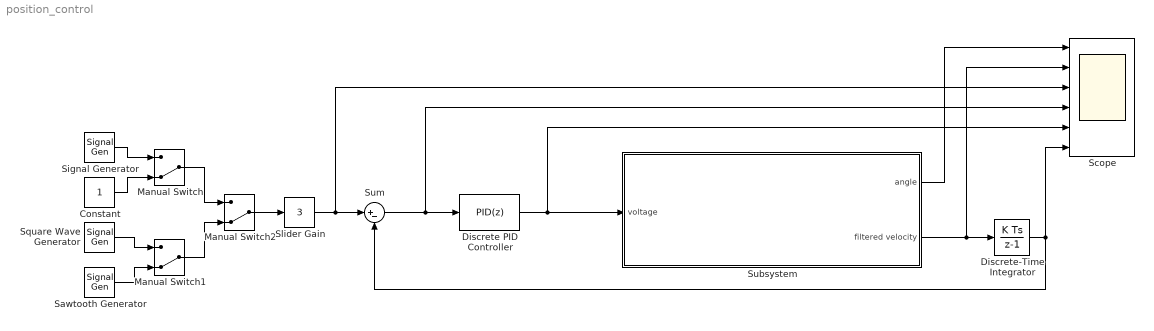
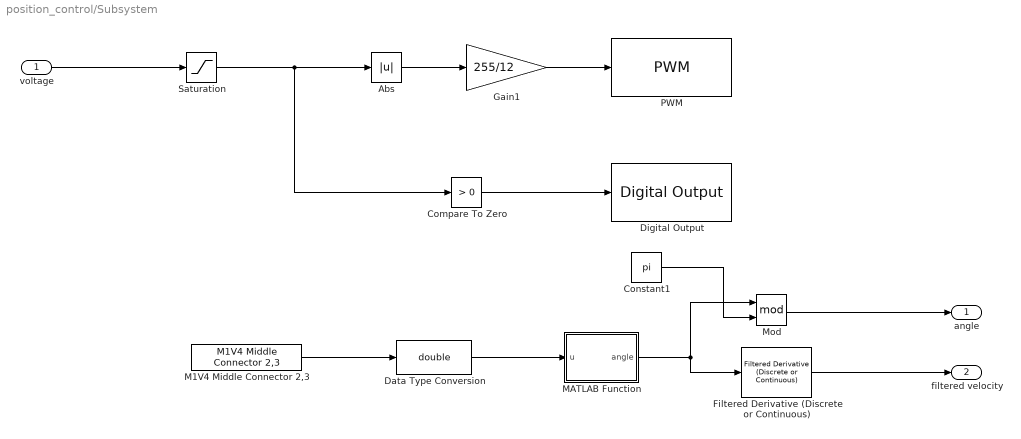
== matlab function position_control/Subsystem/MATLAB Function ==
function angle = count2angle(u)

N = 500; Q = 4; G = 6.3;
factor = 2 * pi / (N*Q*G);
angle = u * factor;

/*
 * Academic License - for use in teaching, academic research, and meeting
 * course requirements at degree granting institutions only.  Not for
 * government, commercial, or other organizational use.
 *
 * File: position_control.c
 *
 * Code generated for Simulink model 'position_control'.
 *
 * Model version                  : 1.5
 * Simulink Coder version         : 9.9 (R2023a) 19-Nov-2022
 * C/C++ source code generated on : Fri Jul 17 13:14:09 2026
 *
 * Target selection: ert.tlc
 * Embedded hardware selection: Atmel->AVR
 * Code generation objectives: Unspecified
 * Validation result: Not run
 */

#include "position_control.h"
#include "rtwtypes.h"
#include "rt_nonfinite.h"
#include "position_control_private.h"
#include <math.h>
#include "position_control_types.h"
#include <float.h>

/* Block signals (default storage) */
B_position_control_T position_control_B;

/* Block states (default storage) */
DW_position_control_T position_control_DW;

/* Real-time model */
static RT_MODEL_position_control_T position_control_M_;
RT_MODEL_position_control_T *const position_control_M = &position_control_M_;
real_T rt_modd_snf(real_T u0, real_T u1)
{
  real_T q;
  real_T y;
  boolean_T yEq;
  y = u0;
  if (u1 == 0.0) {
    if (u0 == 0.0) {
      y = u1;
    }
  } else if (rtIsNaN(u0) || rtIsNaN(u1) || rtIsInf(u0)) {
    y = (rtNaN);
  } else if (u0 == 0.0) {
    y = 0.0 / u1;
  } else if (rtIsInf(u1)) {
    if ((u1 < 0.0) != (u0 < 0.0)) {
      y = u1;
    }
  } else {
    y = fmod(u0, u1);
    yEq = (y == 0.0);
    if ((!yEq) && (u1 > floor(u1))) {
      q = fabs(u0 / u1);
      yEq = !(fabs(q - floor(q + 0.5)) > DBL_EPSILON * q);
    }

    if (yEq) {
      y = u1 * 0.0;
    } else if ((u0 < 0.0) != (u1 < 0.0)) {
      y += u1;
    }
  }

  return y;
}

/* Model step function */
void position_control_step(void)
{
  /* local block i/o variables */
  real_T rtb_FilterCoefficient;
  real_T rtb_Switch;
  codertarget_arduinobase_inter_T *obj;
  real_T angle;
  real_T rtb_Integrator_c;
  real_T temp;
  int32_T rtb_M1V4MiddleConnector23_0;
  int8_T tmp;
  int8_T tmp_0;

  /* Gain: '<S57>/Minimum sampling to time constant ratio' */
  rtb_Integrator_c = position_control_P.FilteredDerivativeDiscreteorC_m *
    position_control_B.Probe[0];

  /* MinMax: '<S57>/MinMax' incorporates:
   *  Constant: '<S57>/Time constant'
   */
  if ((!(rtb_Integrator_c >= position_control_P.FilteredDerivativeDiscreteorC_a))
      && (!rtIsNaN(position_control_P.FilteredDerivativeDiscreteorC_a))) {
    rtb_Integrator_c = position_control_P.FilteredDerivativeDiscreteorC_a;
  }

  /* End of MinMax: '<S57>/MinMax' */

  /* MATLABSystem: '<S3>/M1V4 Middle Connector 2,3' */
  /*         %% Define output properties */
  /*  Call: int enc_output(int enc) */
  rtb_M1V4MiddleConnector23_0 = enc_output(0.0);

  /* MATLAB Function: '<S3>/MATLAB Function' incorporates:
   *  DataTypeConversion: '<S3>/Data Type Conversion'
   *  MATLABSystem: '<S3>/M1V4 Middle Connector 2,3'
   */
  angle = (real_T)rtb_M1V4MiddleConnector23_0 * 0.00049866550056980839;

  /* DiscreteIntegrator: '<S61>/Integrator' incorporates:
   *  Constant: '<S55>/Constant'
   */
  if (position_control_DW.Integrator_IC_LOADING != 0) {
    position_control_DW.Integrator_DSTATE = angle;
    if (position_control_DW.Integrator_DSTATE >=
        position_control_P.Integrator_UpperSat) {
      position_control_DW.Integrator_DSTATE =
        position_control_P.Integrator_UpperSat;
    } else if (position_control_DW.Integrator_DSTATE <=
               position_control_P.Integrator_LowerSat) {
      position_control_DW.Integrator_DSTATE =
        position_control_P.Integrator_LowerSat;
    }
  }

  if ((position_control_P.Constant_Value_h != 0.0) ||
      (position_control_DW.Integrator_PrevResetState != 0)) {
    position_control_DW.Integrator_DSTATE = angle;
    if (position_control_DW.Integrator_DSTATE >=
        position_control_P.Integrator_UpperSat) {
      position_control_DW.Integrator_DSTATE =
        position_control_P.Integrator_UpperSat;
    } else if (position_control_DW.Integrator_DSTATE <=
               position_control_P.Integrator_LowerSat) {
      position_control_DW.Integrator_DSTATE =
        position_control_P.Integrator_LowerSat;
    }
  }

  if (position_control_DW.Integrator_DSTATE >=
      position_control_P.Integrator_UpperSat) {
    position_control_DW.Integrator_DSTATE =
      position_control_P.Integrator_UpperSat;
  } else if (position_control_DW.Integrator_DSTATE <=
             position_control_P.Integrator_LowerSat) {
    position_control_DW.Integrator_DSTATE =
      position_control_P.Integrator_LowerSat;
  }

  /* Saturate: '<S61>/Saturation' incorporates:
   *  DiscreteIntegrator: '<S61>/Integrator'
   */
  if (position_control_DW.Integrator_DSTATE >
      position_control_P.Saturation_UpperSat) {
    temp = position_control_P.Saturation_UpperSat;
  } else if (position_control_DW.Integrator_DSTATE <
             position_control_P.Saturation_LowerSat) {
    temp = position_control_P.Saturation_LowerSat;
  } else {
    temp = position_control_DW.Integrator_DSTATE;
  }

  /* Product: '<S55>/1//T' incorporates:
   *  Fcn: '<S57>/Avoid Divide by Zero'
   *  Saturate: '<S61>/Saturation'
   *  Sum: '<S55>/Sum1'
   */
  position_control_B.uT = 1.0 / ((real_T)(rtb_Integrator_c == 0.0) *
    2.2204460492503131e-16 + rtb_Integrator_c) * (angle - temp);

  /* Gain: '<S55>/Gain' */
  position_control_B.AB = position_control_P.FilteredDerivativeDiscreteorC_i *
    position_control_B.uT;

  /* Saturate: '<S55>/[A,B]' */
  if (position_control_B.AB > position_control_P.FilteredDerivativeDiscreteorC_p)
  {
    /* Gain: '<S55>/Gain' incorporates:
     *  Saturate: '<S55>/[A,B]'
     */
    position_control_B.AB = position_control_P.FilteredDerivativeDiscreteorC_p;
  } else if (position_control_B.AB <
             position_control_P.FilteredDerivativeDiscreteorCon) {
    /* Gain: '<S55>/Gain' incorporates:
     *  Saturate: '<S55>/[A,B]'
     */
    position_control_B.AB = position_control_P.FilteredDerivativeDiscreteorCon;
  }

  /* End of Saturate: '<S55>/[A,B]' */
  /* Math: '<S3>/Mod' incorporates:
   *  Constant: '<S3>/Constant1'
   */
  position_control_B.Mod = rt_modd_snf(angle,
    position_control_P.Constant1_Value_g);

  /* SignalGenerator: '<Root>/Square Wave Generator' incorporates:
   *  SignalGenerator: '<Root>/Signal Generator'
   */
  angle = position_control_M->Timing.t[0];
  rtb_Integrator_c = position_control_P.SquareWaveGenerator_Frequency * angle;

  /* SignalGenerator: '<Root>/Sawtooth Generator' incorporates:
   *  SignalGenerator: '<Root>/Square Wave Generator'
   */
  temp = position_control_P.SawtoothGenerator_Frequency * angle;

  /* ManualSwitch: '<Root>/Manual Switch2' incorporates:
   *  ManualSwitch: '<Root>/Manual Switch1'
   *  SignalGenerator: '<Root>/Sawtooth Generator'
   */
  if (position_control_P.ManualSwitch2_CurrentSetting == 1) {
    /* ManualSwitch: '<Root>/Manual Switch' incorporates:
     *  Constant: '<Root>/Constant'
     *  SignalGenerator: '<Root>/Signal Generator'
     */
    if (position_control_P.ManualSwitch_CurrentSetting == 1) {
      angle = sin(position_control_P.SignalGenerator_Frequency * angle) *
        position_control_P.SignalGenerator_Amplitude;
    } else {
      angle = position_control_P.Constant_Value_c;
    }

    /* End of ManualSwitch: '<Root>/Manual Switch' */
  } else if (position_control_P.ManualSwitch1_CurrentSetting == 1) {
    /* SignalGenerator: '<Root>/Square Wave Generator' */
    if (rtb_Integrator_c - floor(rtb_Integrator_c) >= 0.5) {
      /* ManualSwitch: '<Root>/Manual Switch1' incorporates:
       *  SignalGenerator: '<Root>/Square Wave Generator'
       */
      angle = position_control_P.SquareWaveGenerator_Amplitude;
    } else {
      /* ManualSwitch: '<Root>/Manual Switch1' incorporates:
       *  SignalGenerator: '<Root>/Square Wave Generator'
       */
      angle = -position_control_P.SquareWaveGenerator_Amplitude;
    }
  } else {
    angle = (1.0 - (temp - floor(temp)) * 2.0) *
      position_control_P.SawtoothGenerator_Amplitude;
  }

  /* End of ManualSwitch: '<Root>/Manual Switch2' */

  /* Gain: '<S2>/Slider Gain' */
  position_control_B.SliderGain = position_control_P.SliderGain_gain * angle;

  /* DiscreteIntegrator: '<Root>/Discrete-Time Integrator' */
  position_control_B.DiscreteTimeIntegrator =
    position_control_DW.DiscreteTimeIntegrator_DSTATE;

  /* Sum: '<Root>/Sum' */
  position_control_B.Sum = position_control_B.SliderGain -
    position_control_B.DiscreteTimeIntegrator;

  /* Gain: '<S40>/Filter Coefficient' incorporates:
   *  DiscreteIntegrator: '<S32>/Filter'
   *  Gain: '<S31>/Derivative Gain'
   *  Sum: '<S32>/SumD'
   */
  rtb_FilterCoefficient = (position_control_P.DiscretePIDController_D *
    position_control_B.Sum - position_control_DW.Filter_DSTATE) *
    position_control_P.DiscretePIDController_N;

  /* Sum: '<S46>/Sum' incorporates:
   *  DiscreteIntegrator: '<S37>/Integrator'
   *  Gain: '<S42>/Proportional Gain'
   */
  angle = (position_control_P.DiscretePIDController_P * position_control_B.Sum +
           position_control_DW.Integrator_DSTATE_c) + rtb_FilterCoefficient;

  /* Saturate: '<S44>/Saturation' */
  if (angle > position_control_P.DiscretePIDController_UpperSatu) {
    /* Saturate: '<S44>/Saturation' */
    position_control_B.Saturation_n =
      position_control_P.DiscretePIDController_UpperSatu;
  } else if (angle < position_control_P.DiscretePIDController_LowerSatu) {
    /* Saturate: '<S44>/Saturation' */
    position_control_B.Saturation_n =
      position_control_P.DiscretePIDController_LowerSatu;
  } else {
    /* Saturate: '<S44>/Saturation' */
    position_control_B.Saturation_n = angle;
  }

  /* End of Saturate: '<S44>/Saturation' */
  /* Saturate: '<S3>/Saturation' */
  if (position_control_B.Saturation_n > position_control_P.Saturation_UpperSat_j)
  {
    /* Gain: '<S34>/Integral Gain' */
    rtb_Switch = position_control_P.Saturation_UpperSat_j;
  } else if (position_control_B.Saturation_n <
             position_control_P.Saturation_LowerSat_h) {
    /* Gain: '<S34>/Integral Gain' */
    rtb_Switch = position_control_P.Saturation_LowerSat_h;
  } else {
    /* Gain: '<S34>/Integral Gain' */
    rtb_Switch = position_control_B.Saturation_n;
  }

  /* End of Saturate: '<S3>/Saturation' */

  /* MATLABSystem: '<S3>/Digital Output' incorporates:
   *  Constant: '<S54>/Constant'
   *  RelationalOperator: '<S54>/Compare'
   */
  writeDigitalPin(8, (uint8_T)(rtb_Switch > position_control_P.Constant_Value));

  /* MATLABSystem: '<S3>/PWM' */
  obj = &position_control_DW.obj_l;
  obj->PWMDriverObj.MW_PWM_HANDLE = MW_PWM_GetHandle(9UL);

  /* Gain: '<S3>/Gain1' incorporates:
   *  Abs: '<S3>/Abs'
   */
  rtb_Integrator_c = position_control_P.Gain1_Gain * fabs(rtb_Switch);

  /* MATLABSystem: '<S3>/PWM' */
  if (!(rtb_Integrator_c <= 255.0)) {
    rtb_Integrator_c = 255.0;
  }

  if (!(rtb_Integrator_c >= 0.0)) {
    rtb_Integrator_c = 0.0;
  }

  MW_PWM_SetDutyCycle(position_control_DW.obj_l.PWMDriverObj.MW_PWM_HANDLE,
                      rtb_Integrator_c);

  /* DeadZone: '<S30>/DeadZone' */
  if (angle > position_control_P.DiscretePIDController_UpperSatu) {
    angle -= position_control_P.DiscretePIDController_UpperSatu;
  } else if (angle >= position_control_P.DiscretePIDController_LowerSatu) {
    angle = 0.0;
  } else {
    angle -= position_control_P.DiscretePIDController_LowerSatu;
  }

  /* End of DeadZone: '<S30>/DeadZone' */

  /* Gain: '<S34>/Integral Gain' */
  rtb_Switch = position_control_P.DiscretePIDController_I *
    position_control_B.Sum;

  /* Switch: '<S28>/Switch1' incorporates:
   *  Constant: '<S28>/Clamping_zero'
   *  Constant: '<S28>/Constant'
   *  Constant: '<S28>/Constant2'
   *  RelationalOperator: '<S28>/fix for DT propagation issue'
   */
  if (angle > position_control_P.Clamping_zero_Value) {
    tmp = position_control_P.Constant_Value_l;
  } else {
    tmp = position_control_P.Constant2_Value;
  }

  /* Switch: '<S28>/Switch2' incorporates:
   *  Constant: '<S28>/Clamping_zero'
   *  Constant: '<S28>/Constant3'
   *  Constant: '<S28>/Constant4'
   *  RelationalOperator: '<S28>/fix for DT propagation issue1'
   */
  if (rtb_Switch > position_control_P.Clamping_zero_Value) {
    tmp_0 = position_control_P.Constant3_Value;
  } else {
    tmp_0 = position_control_P.Constant4_Value;
  }

  /* Switch: '<S28>/Switch' incorporates:
   *  Constant: '<S28>/Clamping_zero'
   *  Logic: '<S28>/AND3'
   *  RelationalOperator: '<S28>/Equal1'
   *  RelationalOperator: '<S28>/Relational Operator'
   *  Switch: '<S28>/Switch1'
   *  Switch: '<S28>/Switch2'
   */
  if ((position_control_P.Clamping_zero_Value != angle) && (tmp == tmp_0)) {
    /* Gain: '<S34>/Integral Gain' incorporates:
     *  Constant: '<S28>/Constant1'
     *  Switch: '<S28>/Switch'
     */
    rtb_Switch = position_control_P.Constant1_Value;
  }

  /* End of Switch: '<S28>/Switch' */

  /* Update for DiscreteIntegrator: '<S61>/Integrator' incorporates:
   *  Constant: '<S55>/Constant'
   */
  position_control_DW.Integrator_IC_LOADING = 0U;
  position_control_DW.Integrator_DSTATE += position_control_P.Integrator_gainval
    * position_control_B.uT;
  if (position_control_DW.Integrator_DSTATE >=
      position_control_P.Integrator_UpperSat) {
    position_control_DW.Integrator_DSTATE =
      position_control_P.Integrator_UpperSat;
  } else if (position_control_DW.Integrator_DSTATE <=
             position_control_P.Integrator_LowerSat) {
    position_control_DW.Integrator_DSTATE =
      position_control_P.Integrator_LowerSat;
  }

  if (position_control_P.Constant_Value_h > 0.0) {
    position_control_DW.Integrator_PrevResetState = 1;
  } else if (position_control_P.Constant_Value_h < 0.0) {
    position_control_DW.Integrator_PrevResetState = -1;
  } else if (position_control_P.Constant_Value_h == 0.0) {
    position_control_DW.Integrator_PrevResetState = 0;
  } else {
    position_control_DW.Integrator_PrevResetState = 2;
  }

  /* End of Update for DiscreteIntegrator: '<S61>/Integrator' */

  /* Update for DiscreteIntegrator: '<Root>/Discrete-Time Integrator' */
  position_control_DW.DiscreteTimeIntegrator_DSTATE +=
    position_control_P.DiscreteTimeIntegrator_gainval * position_control_B.AB;

  /* Update for DiscreteIntegrator: '<S37>/Integrator' */
  position_control_DW.Integrator_DSTATE_c +=
    position_control_P.Integrator_gainval_l * rtb_Switch;

  /* Update for DiscreteIntegrator: '<S32>/Filter' */
  position_control_DW.Filter_DSTATE += position_control_P.Filter_gainval *
    rtb_FilterCoefficient;

  {                                    /* Sample time: [0.0s, 0.0s] */
    extmodeErrorCode_T errorCode = EXTMODE_SUCCESS;
    extmodeSimulationTime_T currentTime = (extmodeSimulationTime_T)
      ((position_control_M->Timing.clockTick0 * 1) + 0)
      ;

    /* Trigger External Mode event */
    errorCode = extmodeEvent(0,currentTime);
    if (errorCode != EXTMODE_SUCCESS) {
      /* Code to handle External Mode event errors
         may be added here */
    }
  }

  {                                    /* Sample time: [0.01s, 0.0s] */
    extmodeErrorCode_T errorCode = EXTMODE_SUCCESS;
    extmodeSimulationTime_T currentTime = (extmodeSimulationTime_T)
      ((position_control_M->Timing.clockTick1 * 1) + 0)
      ;

    /* Trigger External Mode event */
    errorCode = extmodeEvent(1,currentTime);
    if (errorCode != EXTMODE_SUCCESS) {
      /* Code to handle External Mode event errors
         may be added here */
    }
  }

  /* Update absolute time for base rate */
  /* The "clockTick0" counts the number of times the code of this task has
   * been executed. The absolute time is the multiplication of "clockTick0"
   * and "Timing.stepSize0". Size of "clockTick0" ensures timer will not
   * overflow during the application lifespan selected.
   */
  position_control_M->Timing.t[0] =
    ((time_T)(++position_control_M->Timing.clockTick0)) *
    position_control_M->Timing.stepSize0;

  {
    /* Update absolute timer for sample time: [0.01s, 0.0s] */
    /* The "clockTick1" counts the number of times the code of this task has
     * been executed. The resolution of this integer timer is 0.01, which is the step size
     * of the task. Size of "clockTick1" ensures timer will not overflow during the
     * application lifespan selected.
     */
    position_control_M->Timing.clockTick1++;
  }
}
